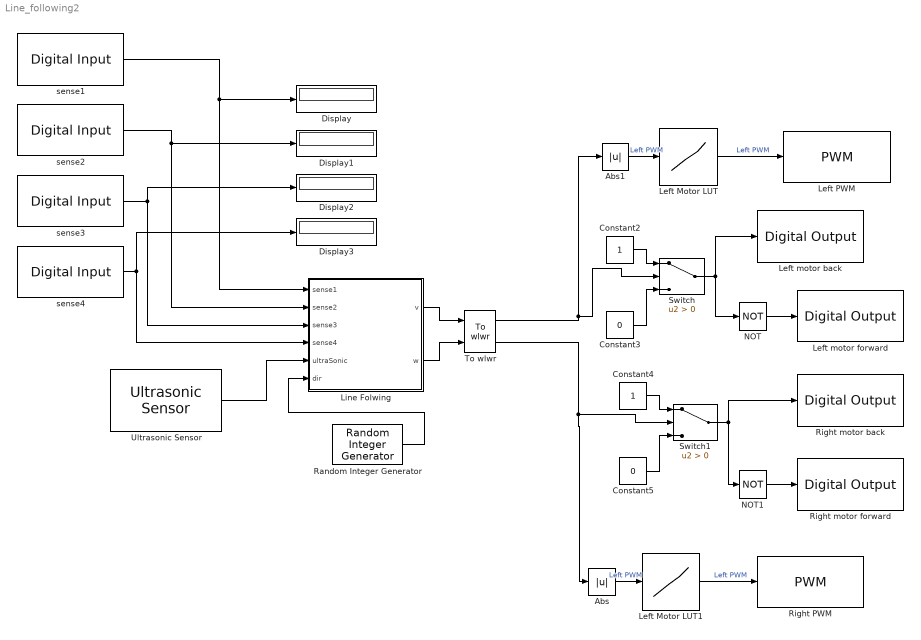
== stateflow chart Line_following2/Line Folwing ==
  state Random
    entry:
    dir;
  state notEnd
    entry:
    v=-0.12;
  state End
    entry:
    v=0;
    w=0;
    i=1;
  state TurnAround
    entry:
    v=0;
    w=3;
  state checkEnd
    entry:
    v=0.12;
  state TurnLeft
    entry:
    v=0;
    w=-3;
  state TurnRight
    entry:
    v=0;
    w=3;
  state Drive
    entry:
    v=0.12;
    w=0;
    i;
    n;
    data1;
    block=4;
  state ObjectDetected
    entry:
    v=0.12;
  state CorrectRight1
    entry:
    w=-3;
  state TurnAround1
    entry:
    w=3;
  state CorrectLeft1
    entry:
    w=3;
  state EndOfLine
    entry:
    v=0;
  state update
    entry:
    data1=ultraSonic;
  state WeOUT
    entry:
    v=0;
    w=0;
  checkEnd -> TurnAround [order 3] : [after(0.5,sec) &&sense1 ==0 && sense2 == 0 && sense3 ==0 && sense4==0 && i==1]
  Random -> TurnLeft [order 2] : [dir==1]
  Random -> TurnRight [order 1] : [dir==0]
  notEnd -> Random : [after(0.5,sec)]
  checkEnd -> notEnd [order 1] : [after(0.5,sec) &&sense1 == 1 && sense2 == 1 && sense3 ==1 && sense4==1 ]
  End -> TurnAround : [after(3,sec)]
  checkEnd -> End [order 2] : [after(0.5,sec) &&sense1 ==0 && sense2 == 0 && sense3 ==0 && sense4==0 && i==0]
  TurnAround -> Drive : [after(2,sec) && sense2 == 0 && sense3 == 0]
  Drive -> checkEnd [order 1] : [after(1,sec) && sense1 == 0 && sense2 == 0 && sense3 == 0 && sense4==0]
  (default) -> Drive
  TurnRight -> Drive : [after(0.5,sec) && sense2 ==0 && sense3 ==0]
  Drive -> TurnLeft [order 4] : [ sense1 == 0 | sense2 == 0 && sense3 == 0  && sense4==0]
  TurnLeft -> Drive : [sense2==0 && sense3==0 && after(0.5,sec)]
  Drive -> TurnRight [order 2] : [sense3 == 0 | sense4==0 && sense2 == 0 && sense1 == 0 ]
  TurnAround1 -> Drive : [after(1,sec) && sense2 == 0 && sense3 == 0]
  Drive -> EndOfLine [order 5] : [sense1 == 1 && sense2 == 1 && sense3 == 1 && sense4==1]
  Drive -> ObjectDetected [order 3] : [ultraSonic ~= 0 && block~=4]
  ObjectDetected -> CorrectRight1 [order 2] : [sense2==1 && sense3 ==0]
  ObjectDetected -> CorrectLeft1 [order 3] : [sense2==0 && sense3 ==1]
  CorrectRight1 -> ObjectDetected : [sense2==0 && sense3 == 0]
  CorrectLeft1 -> ObjectDetected : [sense2 ==0 && sense3 ==0]
  ObjectDetected -> EndOfLine [order 1] : [sense1 == 0 && sense4 == 0]
  EndOfLine -> TurnAround1 [order 2] : [after(1,sec)]
  update -> EndOfLine
  EndOfLine -> update [order 1] : [ultraSonic<data1 && ultraSonic~=0 && i==0]
  EndOfLine -> WeOUT [order 3] : [i==1 && ultraSonic==data1]
  data: v output; w output; sense3 input; sense2 input; sense4 input; sense1 input; ultraSonic input; i local =0; dir input; n local =1; data1 local =100; block local

/*
 * Line_following2.c
 *
 * Academic License - for use in teaching, academic research, and meeting
 * course requirements at degree granting institutions only.  Not for
 * government, commercial, or other organizational use.
 *
 * Code generation for model "Line_following2".
 *
 * Model version              : 5.23
 * Simulink Coder version : 9.9 (R2023a) 19-Nov-2022
 * C source code generated on : Fri Oct  6 15:35:16 2023
 *
 * Target selection: ert.tlc
 * Note: GRT includes extra infrastructure and instrumentation for prototyping
 * Embedded hardware selection: ARM Compatible->ARM Cortex
 * Code generation objectives: Unspecified
 * Validation result: Not run
 */

#include "Line_following2.h"
#include "rtwtypes.h"
#include <string.h>
#include "Line_following2_types.h"
#include <math.h>
#include "Line_following2_private.h"

/* Named constants for Chart: '<Root>/Line Folwing' */
#define Line_followi_IN_NO_ACTIVE_CHILD ((uint8_T)0U)
#define Line_followin_IN_ObjectDetected (6U)
#define Line_following2_CALL_EVENT     (-1)
#define Line_following2_IN_CorrectLeft1 (1U)
#define Line_following2_IN_Drive       (3U)
#define Line_following2_IN_End         (4U)
#define Line_following2_IN_EndOfLine   (5U)
#define Line_following2_IN_Random      (7U)
#define Line_following2_IN_TurnAround  (8U)
#define Line_following2_IN_TurnAround1 (9U)
#define Line_following2_IN_TurnLeft    (10U)
#define Line_following2_IN_TurnRight   (11U)
#define Line_following2_IN_WeOUT       (12U)
#define Line_following2_IN_checkEnd    (13U)
#define Line_following2_IN_notEnd      (14U)
#define Line_following2_IN_update      (15U)
#define Line_following_IN_CorrectRight1 (2U)

/* Block signals (default storage) */
B_Line_following2_T Line_following2_B;

/* Block states (default storage) */
DW_Line_following2_T Line_following2_DW;

/* Real-time model */
static RT_MODEL_Line_following2_T Line_following2_M_;
RT_MODEL_Line_following2_T *const Line_following2_M = &Line_following2_M_;

/* Forward declaration for local functions */
static void Line_following2_Drive(void);
static void Line_following2_checkEnd(void);
static real_T Line_following2_rand(void);
static void rate_monotonic_scheduler(void);
uint32_T plook_u32d_binckan(real_T u, const real_T bp[], uint32_T maxIndex)
{
  uint32_T bpIndex;

  /* Prelookup - Index only
     Index Search method: 'binary'
     Interpolation method: 'Use nearest'
     Extrapolation method: 'Clip'
     Use previous index: 'off'
     Use last breakpoint for index at or above upper limit: 'on'
     Remove protection against out-of-range input in generated code: 'off'
   */
  if (u <= bp[0U]) {
    bpIndex = 0U;
  } else if (u < bp[maxIndex]) {
    bpIndex = binsearch_u32d(u, bp, maxIndex >> 1U, maxIndex);
    if ((bpIndex < maxIndex) && (bp[bpIndex + 1U] - u <= u - bp[bpIndex])) {
      bpIndex++;
    }
  } else {
    bpIndex = maxIndex;
  }

  return bpIndex;
}

uint32_T binsearch_u32d(real_T u, const real_T bp[], uint32_T startIndex,
  uint32_T maxIndex)
{
  uint32_T bpIdx;
  uint32_T bpIndex;
  uint32_T iRght;

  /* Binary Search */
  bpIdx = startIndex;
  bpIndex = 0U;
  iRght = maxIndex;
  while (iRght - bpIndex > 1U) {
    if (u < bp[bpIdx]) {
      iRght = bpIdx;
    } else {
      bpIndex = bpIdx;
    }

    bpIdx = (iRght + bpIndex) >> 1U;
  }

  return bpIndex;
}

/*
 * Set which subrates need to run this base step (base rate always runs).
 * This function must be called prior to calling the model step function
 * in order to remember which rates need to run this base step.  The
 * buffering of events allows for overlapping preemption.
 */
void Line_following2_SetEventsForThisBaseStep(boolean_T *eventFlags)
{
  /* Task runs when its counter is zero, computed via rtmStepTask macro */
  eventFlags[1] = ((boolean_T)rtmStepTask(Line_following2_M, 1));
  eventFlags[2] = ((boolean_T)rtmStepTask(Line_following2_M, 2));
}

/*
 *         This function updates active task flag for each subrate
 *         and rate transition flags for tasks that exchange data.
 *         The function assumes rate-monotonic multitasking scheduler.
 *         The function must be called at model base rate so that
 *         the generated code self-manages all its subrates and rate
 *         transition flags.
 */
static void rate_monotonic_scheduler(void)
{
  /* To ensure a deterministic data transfer between two rates,
   * data is transferred at the priority of a fast task and the frequency
   * of the slow task.  The following flags indicate when the data transfer
   * happens.  That is, a rate interaction flag is set true when both rates
   * will run, and false otherwise.
   */

  /* tid 0 shares data with slower tid rates: 1, 2 */
  Line_following2_M->Timing.RateInteraction.TID0_1 =
    (Line_following2_M->Timing.TaskCounters.TID[1] == 0);
  Line_following2_M->Timing.RateInteraction.TID0_2 =
    (Line_following2_M->Timing.TaskCounters.TID[2] == 0);

  /* Compute which subrates run during the next base time step.  Subrates
   * are an integer multiple of the base rate counter.  Therefore, the subtask
   * counter is reset when it reaches its limit (zero means run).
   */
  (Line_following2_M->Timing.TaskCounters.TID[1])++;
  if ((Line_following2_M->Timing.TaskCounters.TID[1]) > 9) {/* Sample time: [0.1s, 0.0s] */
    Line_following2_M->Timing.TaskCounters.TID[1] = 0;
  }

  (Line_following2_M->Timing.TaskCounters.TID[2])++;
  if ((Line_following2_M->Timing.TaskCounters.TID[2]) > 299) {/* Sample time: [3.0s, 0.0s] */
    Line_following2_M->Timing.TaskCounters.TID[2] = 0;
  }
}

/* Function for Chart: '<Root>/Line Folwing' */
static void Line_following2_Drive(void)
{
  boolean_T tmp;
  boolean_T tmp_0;
  boolean_T tmp_1;
  boolean_T tmp_2;
  Line_following2_B.v = 0.12;
  Line_following2_B.w = 0.0;
  tmp = !Line_following2_B.TmpRTBAtLineFolwingInport1;
  tmp_0 = !Line_following2_B.TmpRTBAtLineFolwingInport3;
  tmp_1 = !Line_following2_B.TmpRTBAtLineFolwingInport2;
  tmp_2 = !Line_following2_B.TmpRTBAtLineFolwingInport4;
  if ((Line_following2_DW.temporalCounter_i1 >= 100U) && tmp_2 && tmp_1 && tmp &&
      tmp_0) {
    Line_following2_DW.is_c1_Line_following2 = Line_following2_IN_checkEnd;
    Line_following2_DW.temporalCounter_i1 = 0U;
  } else if ((tmp || tmp_0) && tmp_1 && tmp_2) {
    Line_following2_DW.is_c1_Line_following2 = Line_following2_IN_TurnRight;
    Line_following2_DW.temporalCounter_i1 = 0U;
    Line_following2_B.v = 0.0;
    Line_following2_B.w = 3.0;
  } else if ((Line_following2_B.UltrasonicSensor != 0.0) &&
             (Line_following2_DW.block != 4.0)) {
    Line_following2_DW.is_c1_Line_following2 = Line_followin_IN_ObjectDetected;
  } else if ((tmp_2 || tmp_1) && tmp && tmp_0) {
    Line_following2_DW.is_c1_Line_following2 = Line_following2_IN_TurnLeft;
    Line_following2_DW.temporalCounter_i1 = 0U;
    Line_following2_B.v = 0.0;
    Line_following2_B.w = -3.0;
  } else if (Line_following2_B.TmpRTBAtLineFolwingInport4 &&
             Line_following2_B.TmpRTBAtLineFolwingInport2 &&
             Line_following2_B.TmpRTBAtLineFolwingInport1 &&
             Line_following2_B.TmpRTBAtLineFolwingInport3) {
    Line_following2_DW.is_c1_Line_following2 = Line_following2_IN_EndOfLine;
    Line_following2_DW.temporalCounter_i1 = 0U;
    Line_following2_B.v = 0.0;
  }
}

/* Function for Chart: '<Root>/Line Folwing' */
static void Line_following2_checkEnd(void)
{
  boolean_T tmp;
  Line_following2_B.v = 0.12;
  if ((Line_following2_DW.temporalCounter_i1 >= 50U) &&
      Line_following2_B.TmpRTBAtLineFolwingInport4 &&
      Line_following2_B.TmpRTBAtLineFolwingInport2 &&
      Line_following2_B.TmpRTBAtLineFolwingInport1 &&
      Line_following2_B.TmpRTBAtLineFolwingInport3) {
    Line_following2_DW.is_c1_Line_following2 = Line_following2_IN_notEnd;
    Line_following2_DW.temporalCounter_i1 = 0U;
    Line_following2_B.v = -0.12;
  } else {
    tmp = ((Line_following2_DW.temporalCounter_i1 >= 50U) &&
           (!Line_following2_B.TmpRTBAtLineFolwingInport4) &&
           (!Line_following2_B.TmpRTBAtLineFolwingInport2) &&
           (!Line_following2_B.TmpRTBAtLineFolwingInport1) &&
           (!Line_following2_B.TmpRTBAtLineFolwingInport3));
    if (tmp && (Line_following2_DW.i == 0.0)) {
      Line_following2_DW.is_c1_Line_following2 = Line_following2_IN_End;
      Line_following2_DW.temporalCounter_i1 = 0U;
      Line_following2_B.v = 0.0;
      Line_following2_B.w = 0.0;
      Line_following2_DW.i = 1.0;
    } else if (tmp && (Line_following2_DW.i == 1.0)) {
      Line_following2_DW.is_c1_Line_following2 = Line_following2_IN_TurnAround;
      Line_following2_DW.temporalCounter_i1 = 0U;
      Line_following2_B.v = 0.0;
      Line_following2_B.w = 3.0;
    }
  }
}

real_T rt_roundd_snf(real_T u)
{
  real_T y;
  if (fabs(u) < 4.503599627370496E+15) {
    if (u >= 0.5) {
      y = floor(u + 0.5);
    } else if (u > -0.5) {
      y = u * 0.0;
    } else {
      y = ceil(u - 0.5);
    }
  } else {
    y = u;
  }

  return y;
}

static real_T Line_following2_rand(void)
{
  real_T r;
  int32_T b_kk;
  int32_T exitg1;
  int32_T k;
  uint32_T b_u[2];
  uint32_T mti;
  uint32_T y;
  boolean_T b_isvalid;
  boolean_T exitg2;
  if (Line_following2_DW.method == 4U) {
    k = (int32_T)(Line_following2_DW.state / 127773U);
    mti = (Line_following2_DW.state - (uint32_T)k * 127773U) * 16807U;
    y = 2836U * (uint32_T)k;
    if (mti < y) {
      Line_following2_DW.state = ~(y - mti) & 2147483647U;
    } else {
      Line_following2_DW.state = mti - y;
    }

    r = (real_T)Line_following2_DW.state * 4.6566128752457969E-10;
  } else if (Line_following2_DW.method == 5U) {
    mti = 69069U * Line_following2_DW.state_f[0] + 1234567U;
    y = Line_following2_DW.state_f[1] << 13 ^ Line_following2_DW.state_f[1];
    y ^= y >> 17;
    y ^= y << 5;
    Line_following2_DW.state_f[0] = mti;
    Line_following2_DW.state_f[1] = y;
    r = (real_T)(mti + y) * 2.328306436538696E-10;
  } else {
    /* ========================= COPYRIGHT NOTICE ============================ */
    /*  This is a uniform (0,1) pseudorandom number generator based on:        */
    /*                                                                         */
    /*  A C-program for MT19937, with initialization improved 2002/1/26.       */
    /*  Coded by Takuji Nishimura and Makoto Matsumoto.                        */
    /*                                                                         */
    /*  Copyright (C) 1997 - 2002, Makoto Matsumoto and Takuji Nishimura,      */
    /*  All rights reserved.                                                   */
    /*                                                                         */
    /*  Redistribution and use in source and binary forms, with or without     */
    /*  modification, are permitted provided that the following conditions     */
    /*  are met:                                                               */
    /*                                                                         */
    /*    1. Redistributions of source code must retain the above copyright    */
    /*       notice, this list of conditions and the following disclaimer.     */
    /*                                                                         */
    /*    2. Redistributions in binary form must reproduce the above copyright */
    /*       notice, this list of conditions and the following disclaimer      */
    /*       in the documentation and/or other materials provided with the     */
    /*       distribution.                                                     */
    /*                                                                         */
    /*    3. The names of its contributors may not be used to endorse or       */
    /*       promote products derived from this software without specific      */
    /*       prior written permission.                                         */
    /*                                                                         */
    /*  THIS SOFTWARE IS PROVIDED BY THE COPYRIGHT HOLDERS AND CONTRIBUTORS    */
    /*  "AS IS" AND ANY EXPRESS OR IMPLIED WARRANTIES, INCLUDING, BUT NOT      */
    /*  LIMITED TO, THE IMPLIED WARRANTIES OF MERCHANTABILITY AND FITNESS FOR  */
    /*  A PARTICULAR PURPOSE ARE DISCLAIMED.  IN NO EVENT SHALL THE COPYRIGHT  */
    /*  OWNER OR CONTRIBUTORS BE LIABLE FOR ANY DIRECT, INDIRECT, INCIDENTAL,  */
    /*  SPECIAL, EXEMPLARY, OR CONSEQUENTIAL DAMAGES (INCLUDING, BUT NOT       */
    /*  LIMITED TO, PROCUREMENT OF SUBSTITUTE GOODS OR SERVICES; LOSS OF USE,  */
    /*  DATA, OR PROFITS; OR BUSINESS INTERRUPTION) HOWEVER CAUSED AND ON ANY  */
    /*  THEORY OF LIABILITY, WHETHER IN CONTRACT, STRICT LIABILITY, OR TORT    */
    /*  (INCLUDING  NEGLIGENCE OR OTHERWISE) ARISING IN ANY WAY OUT OF THE USE */
    /*  OF THIS  SOFTWARE, EVEN IF ADVISED OF THE POSSIBILITY OF SUCH DAMAGE.  */
    /*                                                                         */
    /* =============================   END   ================================= */
    do {
      exitg1 = 0;
      for (k = 0; k < 2; k++) {
        mti = Line_following2_DW.state_p[624] + 1U;
        if (Line_following2_DW.state_p[624] + 1U >= 625U) {
          for (b_kk = 0; b_kk < 227; b_kk++) {
            y = (Line_following2_DW.state_p[b_kk + 1] & 2147483647U) |
              (Line_following2_DW.state_p[b_kk] & 2147483648U);
            if ((y & 1U) == 0U) {
              mti = y >> 1U;
            } else {
              mti = y >> 1U ^ 2567483615U;
            }

            Line_following2_DW.state_p[b_kk] = Line_following2_DW.state_p[b_kk +
              397] ^ mti;
          }

          for (b_kk = 0; b_kk < 396; b_kk++) {
            y = (Line_following2_DW.state_p[b_kk + 227] & 2147483648U) |
              (Line_following2_DW.state_p[b_kk + 228] & 2147483647U);
            if ((y & 1U) == 0U) {
              mti = y >> 1U;
            } else {
              mti = y >> 1U ^ 2567483615U;
            }

            Line_following2_DW.state_p[b_kk + 227] =
              Line_following2_DW.state_p[b_kk] ^ mti;
          }

          y = (Line_following2_DW.state_p[623] & 2147483648U) |
            (Line_following2_DW.state_p[0] & 2147483647U);
          if ((y & 1U) == 0U) {
            mti = y >> 1U;
          } else {
            mti = y >> 1U ^ 2567483615U;
          }

          Line_following2_DW.state_p[623] = Line_following2_DW.state_p[396] ^
            mti;
          mti = 1U;
        }

        y = Line_following2_DW.state_p[(int32_T)mti - 1];
        Line_following2_DW.state_p[624] = mti;
        y ^= y >> 11U;
        y ^= y << 7U & 2636928640U;
        y ^= y << 15U & 4022730752U;
        b_u[k] = y >> 18U ^ y;
      }

      r = ((real_T)(b_u[0] >> 5U) * 6.7108864E+7 + (real_T)(b_u[1] >> 6U)) *
        1.1102230246251565E-16;
      if (r == 0.0) {
        if ((Line_following2_DW.state_p[624] >= 1U) &&
            (Line_following2_DW.state_p[624] < 625U)) {
          b_isvalid = true;
        } else {
          b_isvalid = false;
        }

        if (b_isvalid) {
          b_isvalid = false;
          k = 0;
          exitg2 = false;
          while ((!exitg2) && (k + 1 < 625)) {
            if (Line_following2_DW.state_p[k] == 0U) {
              k++;
            } else {
              b_isvalid = true;
              exitg2 = true;
            }
          }
        }

        if (!b_isvalid) {
          mti = 5489U;
          Line_following2_DW.state_p[0] = 5489U;
          for (k = 0; k < 623; k++) {
            mti = ((mti >> 30U ^ mti) * 1812433253U + (uint32_T)k) + 1U;
            Line_following2_DW.state_p[k + 1] = mti;
          }

          Line_following2_DW.state_p[624] = 624U;
        }
      } else {
        exitg1 = 1;
      }
    } while (exitg1 == 0);
  }

  return r;
}

/* Model step function for TID0 */
void Line_following2_step0(void)       /* Sample time: [0.01s, 0.0s] */
{
  codertarget_arduinobase_inter_T *obj;
  real_T rtb_vtow_idx_0;
  real_T rtb_vtow_idx_1;
  real_T u0;
  uint32_T duration;
  uint8_T tmp;

  {                                    /* Sample time: [0.01s, 0.0s] */
    rate_monotonic_scheduler();
  }

  /* RateTransition generated from: '<Root>/Line Folwing' */
  if (Line_following2_M->Timing.RateInteraction.TID0_1) {
    /* RateTransition generated from: '<Root>/Line Folwing' */
    Line_following2_B.TmpRTBAtLineFolwingInport1 =
      Line_following2_DW.TmpRTBAtLineFolwingInport1_Buff;

    /* RateTransition generated from: '<Root>/Line Folwing' */
    Line_following2_B.TmpRTBAtLineFolwingInport2 =
      Line_following2_DW.TmpRTBAtLineFolwingInport2_Buff;

    /* RateTransition generated from: '<Root>/Line Folwing' */
    Line_following2_B.TmpRTBAtLineFolwingInport3 =
      Line_following2_DW.TmpRTBAtLineFolwingInport3_Buff;

    /* RateTransition generated from: '<Root>/Line Folwing' */
    Line_following2_B.TmpRTBAtLineFolwingInport4 =
      Line_following2_DW.TmpRTBAtLineFolwingInport4_Buff;
  }

  /* End of RateTransition generated from: '<Root>/Line Folwing' */

  /* RateTransition generated from: '<Root>/Line Folwing' */
  if (Line_following2_M->Timing.RateInteraction.TID0_2) {
    /* RateTransition generated from: '<Root>/Line Folwing' */
    Line_following2_B.TmpRTBAtLineFolwingInport6 =
      Line_following2_DW.TmpRTBAtLineFolwingInport6_Buff;
  }

  /* End of RateTransition generated from: '<Root>/Line Folwing' */

  /* MATLABSystem: '<Root>/Ultrasonic Sensor' */
  if (Line_following2_DW.obj_bs.TunablePropsChanged) {
    Line_following2_DW.obj_bs.TunablePropsChanged = false;
  }

  MW_UltrasonicRead(&duration, 1, 13, 12, 10);

  /* MATLABSystem: '<Root>/Ultrasonic Sensor' */
  Line_following2_B.UltrasonicSensor = (real_T)duration * 0.000343 / 2.0;

  /* Chart: '<Root>/Line Folwing' */
  if (Line_following2_DW.temporalCounter_i1 < 511U) {
    Line_following2_DW.temporalCounter_i1++;
  }

  Line_following2_DW.sfEvent = Line_following2_CALL_EVENT;
  if (Line_following2_DW.is_active_c1_Line_following2 == 0U) {
    Line_following2_DW.is_active_c1_Line_following2 = 1U;
    Line_following2_DW.is_c1_Line_following2 = Line_following2_IN_Drive;
    Line_following2_DW.temporalCounter_i1 = 0U;
    Line_following2_B.v = 0.12;
    Line_following2_B.w = 0.0;
    Line_following2_DW.block = 4.0;
  } else {
    switch (Line_following2_DW.is_c1_Line_following2) {
     case Line_following2_IN_CorrectLeft1:
      Line_following2_B.w = 3.0;
      if ((!Line_following2_B.TmpRTBAtLineFolwingInport2) &&
          (!Line_following2_B.TmpRTBAtLineFolwingInport1)) {
        Line_following2_DW.is_c1_Line_following2 =
          Line_followin_IN_ObjectDetected;
        Line_following2_B.v = 0.12;
      }
      break;

     case Line_following_IN_CorrectRight1:
      Line_following2_B.w = -3.0;
      if ((!Line_following2_B.TmpRTBAtLineFolwingInport2) &&
          (!Line_following2_B.TmpRTBAtLineFolwingInport1)) {
        Line_following2_DW.is_c1_Line_following2 =
          Line_followin_IN_ObjectDetected;
        Line_following2_B.v = 0.12;
      }
      break;

     case Line_following2_IN_Drive:
      Line_following2_Drive();
      break;

     case Line_following2_IN_End:
      Line_following2_B.v = 0.0;
      Line_following2_B.w = 0.0;
      if (Line_following2_DW.temporalCounter_i1 >= 300U) {
        Line_following2_DW.is_c1_Line_following2 = Line_following2_IN_TurnAround;
        Line_following2_DW.temporalCounter_i1 = 0U;
        Line_following2_B.w = 3.0;
      }
      break;

     case Line_following2_IN_EndOfLine:
      Line_following2_B.v = 0.0;
      if ((Line_following2_B.UltrasonicSensor < Line_following2_DW.data1) &&
          (Line_following2_B.UltrasonicSensor != 0.0) && (Line_following2_DW.i ==
           0.0)) {
        Line_following2_DW.is_c1_Line_following2 = Line_following2_IN_update;
        Line_following2_DW.data1 = Line_following2_B.UltrasonicSensor;
      } else if (Line_following2_DW.temporalCounter_i1 >= 100U) {
        Line_following2_DW.is_c1_Line_following2 =
          Line_following2_IN_TurnAround1;
        Line_following2_DW.temporalCounter_i1 = 0U;
        Line_following2_B.w = 3.0;
      } else if ((Line_following2_DW.i == 1.0) &&
                 (Line_following2_B.UltrasonicSensor == Line_following2_DW.data1))
      {
        Line_following2_DW.is_c1_Line_following2 = Line_following2_IN_WeOUT;
        Line_following2_B.w = 0.0;
      }
      break;

     case Line_followin_IN_ObjectDetected:
      Line_following2_B.v = 0.12;
      if ((!Line_following2_B.TmpRTBAtLineFolwingInport4) &&
          (!Line_following2_B.TmpRTBAtLineFolwingInport3)) {
        Line_following2_DW.is_c1_Line_following2 = Line_following2_IN_EndOfLine;
        Line_following2_DW.temporalCounter_i1 = 0U;
        Line_following2_B.v = 0.0;
      } else if (Line_following2_B.TmpRTBAtLineFolwingInport2 &&
                 (!Line_following2_B.TmpRTBAtLineFolwingInport1)) {
        Line_following2_DW.is_c1_Line_following2 =
          Line_following_IN_CorrectRight1;
        Line_following2_B.w = -3.0;
      } else if ((!Line_following2_B.TmpRTBAtLineFolwingInport2) &&
                 Line_following2_B.TmpRTBAtLineFolwingInport1) {
        Line_following2_DW.is_c1_Line_following2 =
          Line_following2_IN_CorrectLeft1;
        Line_following2_B.w = 3.0;
      }
      break;

     case Line_following2_IN_Random:
      if (!Line_following2_B.TmpRTBAtLineFolwingInport6) {
        Line_following2_DW.is_c1_Line_following2 = Line_following2_IN_TurnRight;
        Line_following2_DW.temporalCounter_i1 = 0U;
        Line_following2_B.v = 0.0;
        Line_following2_B.w = 3.0;
      } else {
        Line_following2_DW.is_c1_Line_following2 = Line_following2_IN_TurnLeft;
        Line_following2_DW.temporalCounter_i1 = 0U;
        Line_following2_B.v = 0.0;
        Line_following2_B.w = -3.0;
      }
      break;

     case Line_following2_IN_TurnAround:
      Line_following2_B.v = 0.0;
      Line_following2_B.w = 3.0;
      if ((Line_following2_DW.temporalCounter_i1 >= 200U) &&
          (!Line_following2_B.TmpRTBAtLineFolwingInport2) &&
          (!Line_following2_B.TmpRTBAtLineFolwingInport1)) {
        Line_following2_DW.is_c1_Line_following2 = Line_following2_IN_Drive;
        Line_following2_DW.temporalCounter_i1 = 0U;
        Line_following2_B.v = 0.12;
        Line_following2_B.w = 0.0;
        Line_following2_DW.block = 4.0;
      }
      break;

     case Line_following2_IN_TurnAround1:
      Line_following2_B.w = 3.0;
      if ((Line_following2_DW.temporalCounter_i1 >= 100U) &&
          (!Line_following2_B.TmpRTBAtLineFolwingInport2) &&
          (!Line_following2_B.TmpRTBAtLineFolwingInport1)) {
        Line_following2_DW.is_c1_Line_following2 = Line_following2_IN_Drive;
        Line_following2_DW.temporalCounter_i1 = 0U;
        Line_following2_B.v = 0.12;
        Line_following2_B.w = 0.0;
        Line_following2_DW.block = 4.0;
      }
      break;

     case Line_following2_IN_TurnLeft:
      Line_following2_B.v = 0.0;
      Line_following2_B.w = -3.0;
      if ((!Line_following2_B.TmpRTBAtLineFolwingInport2) &&
          (!Line_following2_B.TmpRTBAtLineFolwingInport1) &&
          (Line_following2_DW.temporalCounter_i1 >= 50U)) {
        Line_following2_DW.is_c1_Line_following2 = Line_following2_IN_Drive;
        Line_following2_DW.temporalCounter_i1 = 0U;
        Line_following2_B.v = 0.12;
        Line_following2_B.w = 0.0;
        Line_following2_DW.block = 4.0;
      }
      break;

     case Line_following2_IN_TurnRight:
      Line_following2_B.v = 0.0;
      Line_following2_B.w = 3.0;
      if ((Line_following2_DW.temporalCounter_i1 >= 50U) &&
          (!Line_following2_B.TmpRTBAtLineFolwingInport2) &&
          (!Line_following2_B.TmpRTBAtLineFolwingInport1)) {
        Line_following2_DW.is_c1_Line_following2 = Line_following2_IN_Drive;
        Line_following2_DW.temporalCounter_i1 = 0U;
        Line_following2_B.v = 0.12;
        Line_following2_B.w = 0.0;
        Line_following2_DW.block = 4.0;
      }
      break;

     case Line_following2_IN_WeOUT:
      Line_following2_B.v = 0.0;
      Line_following2_B.w = 0.0;
      break;

     case Line_following2_IN_checkEnd:
      Line_following2_checkEnd();
      break;

     case Line_following2_IN_notEnd:
      Line_following2_B.v = -0.12;
      if (Line_following2_DW.temporalCounter_i1 >= 50U) {
        Line_following2_DW.is_c1_Line_following2 = Line_following2_IN_Random;
      }
      break;

     default:
      /* case IN_update: */
      Line_following2_DW.is_c1_Line_following2 = Line_following2_IN_EndOfLine;
      Line_following2_DW.temporalCounter_i1 = 0U;
      Line_following2_B.v = 0.0;
      break;
    }
  }

  /* End of Chart: '<Root>/Line Folwing' */

  /* Gain: '<S2>/vtow' incorporates:
   *  Gain: '<S2>/change parameters'
   *  SignalConversion generated from: '<S2>/change parameters'
   */
  u0 = 1.0 / Line_following2_P.Towlwr_wheelR;
  rtb_vtow_idx_0 = (Line_following2_P.changeparameters_Gain[0] *
                    Line_following2_B.v +
                    Line_following2_P.changeparameters_Gain[2] *
                    Line_following2_B.w) * u0;
  rtb_vtow_idx_1 = (Line_following2_P.changeparameters_Gain[1] *
                    Line_following2_B.v +
                    Line_following2_P.changeparameters_Gain[3] *
                    Line_following2_B.w) * u0;

  /* MATLABSystem: '<Root>/Left PWM' */
  obj = &Line_following2_DW.obj_f;
  obj->PWMDriverObj.MW_PWM_HANDLE = MW_PWM_GetHandle(16U);

  /* Lookup_n-D: '<Root>/Left Motor LUT' incorporates:
   *  Abs: '<Root>/Abs1'
   */
  u0 = Line_following2_P.InputPWM[plook_u32d_binckan(fabs(rtb_vtow_idx_0),
    Line_following2_P.WheelSpeed, 172U)];

  /* MATLABSystem: '<Root>/Left PWM' */
  if (!(u0 <= 255.0)) {
    u0 = 255.0;
  }

  if (!(u0 >= 0.0)) {
    u0 = 0.0;
  }

  MW_PWM_SetDutyCycle(Line_following2_DW.obj_f.PWMDriverObj.MW_PWM_HANDLE, u0);

  /* Switch: '<Root>/Switch' incorporates:
   *  Constant: '<Root>/Constant2'
   *  Constant: '<Root>/Constant3'
   */
  if (rtb_vtow_idx_0 > Line_following2_P.Switch_Threshold) {
    rtb_vtow_idx_0 = Line_following2_P.Constant2_Value;
  } else {
    rtb_vtow_idx_0 = Line_following2_P.Constant3_Value;
  }

  /* End of Switch: '<Root>/Switch' */

  /* MATLABSystem: '<Root>/Left motor back' */
  u0 = rt_roundd_snf(rtb_vtow_idx_0);
  if (u0 < 256.0) {
    if (u0 >= 0.0) {
      tmp = (uint8_T)u0;
    } else {
      tmp = 0U;
    }
  } else {
    tmp = MAX_uint8_T;
  }

  writeDigitalPin(5, tmp);

  /* End of MATLABSystem: '<Root>/Left motor back' */

  /* MATLABSystem: '<Root>/Left motor forward' incorporates:
   *  Logic: '<Root>/NOT'
   */
  writeDigitalPin(4, (uint8_T)!(rtb_vtow_idx_0 != 0.0));

  /* MATLABSystem: '<Root>/Right PWM' */
  obj = &Line_following2_DW.obj_p;
  obj->PWMDriverObj.MW_PWM_HANDLE = MW_PWM_GetHandle(17U);

  /* Lookup_n-D: '<Root>/Left Motor LUT1' incorporates:
   *  Abs: '<Root>/Abs'
   */
  u0 = Line_following2_P.InputPWM[plook_u32d_binckan(fabs(rtb_vtow_idx_1),
    Line_following2_P.WheelSpeed, 172U)];

  /* MATLABSystem: '<Root>/Right PWM' */
  if (!(u0 <= 255.0)) {
    u0 = 255.0;
  }

  if (!(u0 >= 0.0)) {
    u0 = 0.0;
  }

  MW_PWM_SetDutyCycle(Line_following2_DW.obj_p.PWMDriverObj.MW_PWM_HANDLE, u0);

  /* Switch: '<Root>/Switch1' incorporates:
   *  Constant: '<Root>/Constant4'
   *  Constant: '<Root>/Constant5'
   */
  if (rtb_vtow_idx_1 > Line_following2_P.Switch1_Threshold) {
    rtb_vtow_idx_1 = Line_following2_P.Constant4_Value;
  } else {
    rtb_vtow_idx_1 = Line_following2_P.Constant5_Value;
  }

  /* End of Switch: '<Root>/Switch1' */

  /* MATLABSystem: '<Root>/Right motor back' */
  u0 = rt_roundd_snf(rtb_vtow_idx_1);
  if (u0 < 256.0) {
    if (u0 >= 0.0) {
      tmp = (uint8_T)u0;
    } else {
      tmp = 0U;
    }
  } else {
    tmp = MAX_uint8_T;
  }

  writeDigitalPin(7, tmp);

  /* End of MATLABSystem: '<Root>/Right motor back' */

  /* MATLABSystem: '<Root>/Right motor forward' incorporates:
   *  Logic: '<Root>/NOT1'
   */
  writeDigitalPin(6, (uint8_T)!(rtb_vtow_idx_1 != 0.0));

  /* Update absolute time */
  /* The "clockTick0" counts the number of times the code of this task has
   * been executed. The absolute time is the multiplication of "clockTick0"
   * and "Timing.stepSize0". Size of "clockTick0" ensures timer will not
   * overflow during the application lifespan selected.
   * Timer of this task consists of two 32 bit unsigned integers.
   * The two integers represent the low bits Timing.clockTick0 and the high bits
   * Timing.clockTickH0. When the low bit overflows to 0, the high bits increment.
   */
  if (!(++Line_following2_M->Timing.clockTick0)) {
    ++Line_following2_M->Timing.clockTickH0;
  }

  Line_following2_M->Timing.taskTime0 = Line_following2_M->Timing.clockTick0 *
    Line_following2_M->Timing.stepSize0 + Line_following2_M->Timing.clockTickH0 *
    Line_following2_M->Timing.stepSize0 * 4294967296.0;
}

/* Model step function for TID1 */
void Line_following2_step1(void)       /* Sample time: [0.1s, 0.0s] */
{
  /* MATLABSystem: '<Root>/sense1' */
  if (Line_following2_DW.obj_m.SampleTime != Line_following2_P.sense1_SampleTime)
  {
    Line_following2_DW.obj_m.SampleTime = Line_following2_P.sense1_SampleTime;
  }

  /* MATLABSystem: '<Root>/sense1' */
  Line_following2_B.sense1 = readDigitalPin(11);

  /* RateTransition generated from: '<Root>/Line Folwing' */
  Line_following2_DW.TmpRTBAtLineFolwingInport4_Buff = Line_following2_B.sense1;

  /* MATLABSystem: '<Root>/sense2' */
  if (Line_following2_DW.obj_b.SampleTime != Line_following2_P.sense2_SampleTime)
  {
    Line_following2_DW.obj_b.SampleTime = Line_following2_P.sense2_SampleTime;
  }

  /* MATLABSystem: '<Root>/sense2' */
  Line_following2_B.sense2 = readDigitalPin(10);

  /* RateTransition generated from: '<Root>/Line Folwing' */
  Line_following2_DW.TmpRTBAtLineFolwingInport2_Buff = Line_following2_B.sense2;

  /* MATLABSystem: '<Root>/sense3' */
  if (Line_following2_DW.obj_h.SampleTime != Line_following2_P.sense3_SampleTime)
  {
    Line_following2_DW.obj_h.SampleTime = Line_following2_P.sense3_SampleTime;
  }

  /* MATLABSystem: '<Root>/sense3' */
  Line_following2_B.sense3 = readDigitalPin(9);

  /* RateTransition generated from: '<Root>/Line Folwing' */
  Line_following2_DW.TmpRTBAtLineFolwingInport1_Buff = Line_following2_B.sense3;

  /* MATLABSystem: '<Root>/sense4' */
  if (Line_following2_DW.obj.SampleTime != Line_following2_P.sense4_SampleTime)
  {
    Line_following2_DW.obj.SampleTime = Line_following2_P.sense4_SampleTime;
  }

  /* MATLABSystem: '<Root>/sense4' */
  Line_following2_B.sense4 = readDigitalPin(8);

  /* RateTransition generated from: '<Root>/Line Folwing' */
  Line_following2_DW.TmpRTBAtLineFolwingInport3_Buff = Line_following2_B.sense4;

  /* Update absolute time */
  /* The "clockTick1" counts the number of times the code of this task has
   * been executed. The resolution of this integer timer is 0.1, which is the step size
   * of the task. Size of "clockTick1" ensures timer will not overflow during the
   * application lifespan selected.
   * Timer of this task consists of two 32 bit unsigned integers.
   * The two integers represent the low bits Timing.clockTick1 and the high bits
   * Timing.clockTickH1. When the low bit overflows to 0, the high bits increment.
   */
  Line_following2_M->Timing.clockTick1++;
  if (!Line_following2_M->Timing.clockTick1) {
    Line_following2_M->Timing.clockTickH1++;
  }
}

/* Model step function for TID2 */
void Line_following2_step2(void)       /* Sample time: [3.0s, 0.0s] */
{
  real_T b;

  /* MATLABSystem: '<Root>/Random Integer Generator' */
  b = Line_following2_rand();

  /* MATLABSystem: '<Root>/Random Integer Generator' */
  Line_following2_B.RandomIntegerGenerator = (floor(b * 2.0) != 0.0);

  /* RateTransition generated from: '<Root>/Line Folwing' */
  Line_following2_DW.TmpRTBAtLineFolwingInport6_Buff =
    Line_following2_B.RandomIntegerGenerator;

  /* Update absolute time */
  /* The "clockTick2" counts the number of times the code of this task has
   * been executed. The resolution of this integer timer is 3.0, which is the step size
   * of the task. Size of "clockTick2" ensures timer will not overflow during the
   * application lifespan selected.
   * Timer of this task consists of two 32 bit unsigned integers.
   * The two integers represent the low bits Timing.clockTick2 and the high bits
   * Timing.clockTickH2. When the low bit overflows to 0, the high bits increment.
   */
  Line_following2_M->Timing.clockTick2++;
  if (!Line_following2_M->Timing.clockTick2) {
    Line_following2_M->Timing.clockTickH2++;
  }
}
